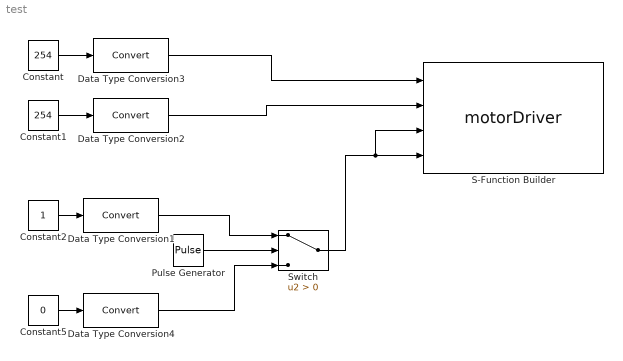
/*
 * Academic License - for use in teaching, academic research, and meeting
 * course requirements at degree granting institutions only.  Not for
 * government, commercial, or other organizational use.
 *
 * File: test.c
 *
 * Code generated for Simulink model 'test'.
 *
 * Model version                  : 1.34
 * Simulink Coder version         : 8.10 (R2016a) 10-Feb-2016
 * C/C++ source code generated on : Wed Dec 21 14:25:44 2016
 *
 * Target selection: ert.tlc
 * Embedded hardware selection: Atmel->AVR
 * Code generation objectives: Unspecified
 * Validation result: Not run
 */

#include "test.h"
#include "test_private.h"

/* Block signals (auto storage) */
B_test_T test_B;

/* Block states (auto storage) */
DW_test_T test_DW;

/* Real-time model */
RT_MODEL_test_T test_M_;
RT_MODEL_test_T *const test_M = &test_M_;

/* Model step function */
void test_step(void)
{
  real_T rtb_PulseGenerator;

  /* DataTypeConversion: '<Root>/Data Type Conversion3' incorporates:
   *  Constant: '<Root>/Constant'
   */
  rtb_PulseGenerator = floor(test_P.Constant_Value);
  if (rtIsNaN(rtb_PulseGenerator) || rtIsInf(rtb_PulseGenerator)) {
    rtb_PulseGenerator = 0.0;
  } else {
    rtb_PulseGenerator = fmod(rtb_PulseGenerator, 256.0);
  }

  test_B.DataTypeConversion3 = (int8_T)(rtb_PulseGenerator < 0.0 ? (int16_T)
    (int8_T)-(int8_T)(uint8_T)-rtb_PulseGenerator : (int16_T)(int8_T)(uint8_T)
    rtb_PulseGenerator);

  /* End of DataTypeConversion: '<Root>/Data Type Conversion3' */

  /* DataTypeConversion: '<Root>/Data Type Conversion2' incorporates:
   *  Constant: '<Root>/Constant1'
   */
  rtb_PulseGenerator = floor(test_P.Constant1_Value);
  if (rtIsNaN(rtb_PulseGenerator) || rtIsInf(rtb_PulseGenerator)) {
    rtb_PulseGenerator = 0.0;
  } else {
    rtb_PulseGenerator = fmod(rtb_PulseGenerator, 256.0);
  }

  test_B.DataTypeConversion2 = (int8_T)(rtb_PulseGenerator < 0.0 ? (int16_T)
    (int8_T)-(int8_T)(uint8_T)-rtb_PulseGenerator : (int16_T)(int8_T)(uint8_T)
    rtb_PulseGenerator);

  /* End of DataTypeConversion: '<Root>/Data Type Conversion2' */

  /* DiscretePulseGenerator: '<Root>/Pulse Generator' */
  rtb_PulseGenerator = (test_DW.clockTickCounter < test_P.PulseGenerator_Duty) &&
    (test_DW.clockTickCounter >= 0L) ? test_P.PulseGenerator_Amp : 0.0;
  if (test_DW.clockTickCounter >= test_P.PulseGenerator_Period - 1.0) {
    test_DW.clockTickCounter = 0L;
  } else {
    test_DW.clockTickCounter++;
  }

  /* End of DiscretePulseGenerator: '<Root>/Pulse Generator' */

  /* Switch: '<Root>/Switch' incorporates:
   *  DataTypeConversion: '<Root>/Data Type Conversion1'
   *  DataTypeConversion: '<Root>/Data Type Conversion4'
   */
  if (rtb_PulseGenerator > test_P.Switch_Threshold) {
    /* DataTypeConversion: '<Root>/Data Type Conversion1' incorporates:
     *  Constant: '<Root>/Constant2'
     */
    rtb_PulseGenerator = floor(test_P.Constant2_Value);
    if (rtIsNaN(rtb_PulseGenerator) || rtIsInf(rtb_PulseGenerator)) {
      rtb_PulseGenerator = 0.0;
    } else {
      rtb_PulseGenerator = fmod(rtb_PulseGenerator, 256.0);
    }

    test_B.Switch = (int8_T)(rtb_PulseGenerator < 0.0 ? (int16_T)(int8_T)
      -(int8_T)(uint8_T)-rtb_PulseGenerator : (int16_T)(int8_T)(uint8_T)
      rtb_PulseGenerator);
  } else {
    /* DataTypeConversion: '<Root>/Data Type Conversion4' incorporates:
     *  Constant: '<Root>/Constant5'
     */
    rtb_PulseGenerator = floor(test_P.Constant5_Value);
    if (rtIsNaN(rtb_PulseGenerator) || rtIsInf(rtb_PulseGenerator)) {
      rtb_PulseGenerator = 0.0;
    } else {
      rtb_PulseGenerator = fmod(rtb_PulseGenerator, 256.0);
    }

    test_B.Switch = (int8_T)(rtb_PulseGenerator < 0.0 ? (int16_T)(int8_T)
      -(int8_T)(uint8_T)-rtb_PulseGenerator : (int16_T)(int8_T)(uint8_T)
      rtb_PulseGenerator);
  }

  /* End of Switch: '<Root>/Switch' */

  /* S-Function (motorDriver): '<Root>/S-Function Builder' */
  motorDriver_Outputs_wrapper(&test_B.DataTypeConversion3,
    &test_B.DataTypeConversion2, &test_B.Switch, &test_B.Switch,
    &test_DW.SFunctionBuilder_DSTATE);

  /* S-Function "motorDriver_wrapper" Block: <Root>/S-Function Builder */
  motorDriver_Update_wrapper(&test_B.DataTypeConversion3,
    &test_B.DataTypeConversion2, &test_B.Switch, &test_B.Switch,
    &test_DW.SFunctionBuilder_DSTATE);
}
